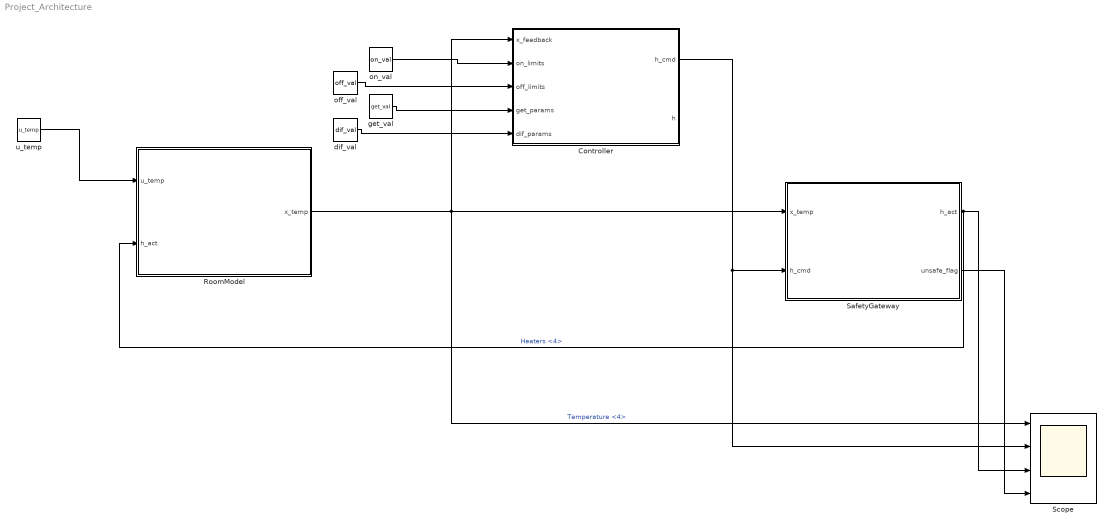
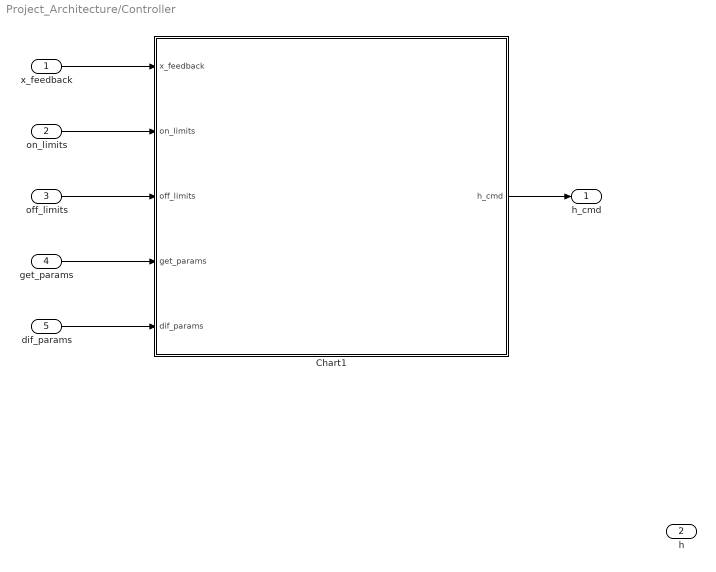
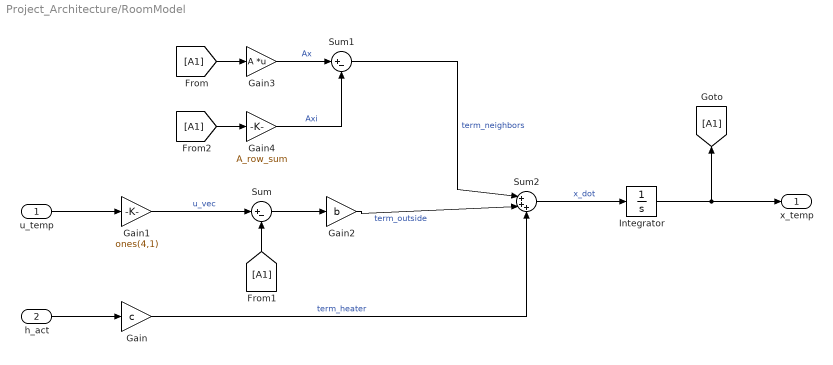
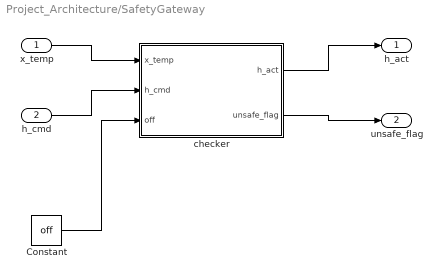
== matlab function Project_Architecture/SafetyGateway/checker ==
function [h_act, unsafe_flag] = checker(x_temp, h_cmd, off)

persistent h_prev
if isempty(h_prev)
    h_prev = zeros(4,1);
end

unsafe_flag = 0;

% Force column vectors
x = x_temp(:);
h = h_cmd(:);

h_rounded = round(h);

if any(abs(h - h_rounded) > 1e-6)
    unsafe_flag = 1;
    h_act = h_prev;
    return;
end

h = h_rounded;

if sum(h) > 2
    unsafe_flag = 1;
    h_act = h_prev;
    return;
end

for i = 1:4
    if x(i) >= off(i) && h(i) == 1
        unsafe_flag = 1;
        h_act = h_prev;
        return;
    end
end

h_act = h;
h_prev = h_act;

== stateflow chart Project_Architecture/Controller/Chart1 ==
  state S1100
    state S3
    (default) -> S1100.S3
    S1100.S3 -> S1100.S3 [order 4] : [x_feedback(2)>=off_limits(2) && h_cmd(2) == 1]{h_cmd(2) = 0;}
    S1100.S3 -> S1100.S3 [order 3] : [x_feedback(2) <=on_limits(2) && h_cmd(2) == 0]{h_cmd(2) = 1;}
    S1100.S3 -> S1100.S3 [order 2] : [x_feedback(1) <=on_limits(1) && h_cmd(1) == 0]{h_cmd(1) = 1;}
    S1100.S3 -> S1100.S3 [order 1] : [x_feedback(1)>=off_limits(1) && h_cmd(1) == 1]{h_cmd(1) = 0;}
  state S0110
    state S3
    (default) -> S0110.S3
    S0110.S3 -> S0110.S3 [order 4] : [x_feedback(2)>=off_limits(2) && h_cmd(2) == 1]{h_cmd(2) = 0;}
    S0110.S3 -> S0110.S3 [order 3] : [x_feedback(2) <=on_limits(2) && h_cmd(2) == 0]{h_cmd(2) = 1;}
    S0110.S3 -> S0110.S3 [order 2] : [x_feedback(3) <=on_limits(3) && h_cmd(3) == 0]{h_cmd(3) = 1;}
    S0110.S3 -> S0110.S3 [order 1] : [x_feedback(3)>=off_limits(3) && h_cmd(3) == 1]{h_cmd(3) = 0;}
  state S0101
    state S3
    (default) -> S0101.S3
    S0101.S3 -> S0101.S3 [order 4] : [x_feedback(2)>=off_limits(2) && h_cmd(2) == 1]{h_cmd(2) = 0;}
    S0101.S3 -> S0101.S3 [order 3] : [x_feedback(2) <=on_limits(2) && h_cmd(2) == 0]{h_cmd(2) = 1;}
    S0101.S3 -> S0101.S3 [order 2] : [x_feedback(4) <=on_limits(4) && h_cmd(4) == 0]{h_cmd(4) = 1;}
    S0101.S3 -> S0101.S3 [order 1] : [x_feedback(4)>=off_limits(4) && h_cmd(4) == 1]{h_cmd(4) = 0;}
  state S0011
    state S3
    S0011.S3 -> S0011.S3 [order 4] : [x_feedback(4)>=off_limits(4) && h_cmd(4) == 1]{h_cmd(4) = 0;}
    S0011.S3 -> S0011.S3 [order 3] : [x_feedback(4) <=on_limits(4) && h_cmd(4) == 0]{h_cmd(4) = 1;}
    S0011.S3 -> S0011.S3 [order 2] : [x_feedback(3) <=on_limits(3) && h_cmd(3) == 0]{h_cmd(3) = 1;}
    S0011.S3 -> S0011.S3 [order 1] : [x_feedback(3)>=off_limits(3) && h_cmd(3) == 1]{h_cmd(3) = 0;}
  state S1001
    state S3
    (default) -> S1001.S3
    S1001.S3 -> S1001.S3 [order 2] : [x_feedback(4)>=off_limits(4) && h_cmd(4) == 1]{h_cmd(4) = 0;}
    S1001.S3 -> S1001.S3 [order 1] : [x_feedback(4) <=on_limits(4) && h_cmd(4) == 0]{h_cmd(4) = 1;}
    S1001.S3 -> S1001.S3 [order 4] : [x_feedback(1) <=on_limits(1) && h_cmd(1) == 0]{h_cmd(1) = 1;}
    S1001.S3 -> S1001.S3 [order 3] : [x_feedback(1)>=off_limits(1) && h_cmd(1) == 1]{h_cmd(1) = 0;}
  state S1010
    state S3
    (default) -> S1010.S3
    S1010.S3 -> S1010.S3 [order 4] : [x_feedback(3)>=off_limits(3) && h_cmd(3) == 1]{h_cmd(3) = 0;}
    S1010.S3 -> S1010.S3 [order 3] : [x_feedback(3) <=on_limits(3) && h_cmd(3) == 0]{h_cmd(3) = 1;}
    S1010.S3 -> S1010.S3 [order 2] : [x_feedback(1) <=on_limits(1) && h_cmd(1) == 0]{h_cmd(1) = 1;}
    S1010.S3 -> S1010.S3 [order 1] : [x_feedback(1)>=off_limits(1) && h_cmd(1) == 1]{h_cmd(1) = 0;}
  (default) -> S0110 [order 1]
  S0110 -> S1100 [order 1] : [x_feedback(1) <=get_params(1) && x_feedback(3) - x_feedback(1) >= dif_params(1)]{h_cmd(3) = 0; h_cmd(1) = 1;}
  S1100 -> S0110 [order 1] : [x_feedback(3) <=get_params(3) && x_feedback(1) - x_feedback(3) >= dif_params(3)]{h_cmd(1) = 0; h_cmd(3) = 1;}
  S1001 -> S1100 [order 4] : [x_feedback(2) <=get_params(2) && x_feedback(4) - x_feedback(2) >= dif_params(2)]{h_cmd(4) = 0; h_cmd(2) = 1;}
  S0110 -> S1010 [order 3] : [x_feedback(1) <=get_params(1) && x_feedback(2) - x_feedback(1) >= dif_params(1)]{h_cmd(2) = 0; h_cmd(1) = 1;}
  S1100 -> S1001 [order 3] : [x_feedback(4) <=get_params(4) && x_feedback(2) - x_feedback(4) >= dif_params(4)]{h_cmd(2) = 0; h_cmd(4) = 1;}
  S0101 -> S0110 [order 1] : [x_feedback(3) <=get_params(3) && x_feedback(4) - x_feedback(3) >= dif_params(3)]{h_cmd(4) = 0; h_cmd(3) = 1;}
  S1010 -> S0110 [order 1] : [x_feedback(2) <=get_params(2) && x_feedback(1) - x_feedback(2) >= dif_params(2)]{h_cmd(1) = 0; h_cmd(2) = 1;}
  S1010 -> S1100 [order 4] : [x_feedback(2) <=get_params(2) && x_feedback(3) - x_feedback(2) >= dif_params(2)]{h_cmd(3) = 0; h_cmd(2) = 1;}
  S1100 -> S0101 [order 2] : [x_feedback(4) <=get_params(4) && x_feedback(1) - x_feedback(4) >= dif_params(4)]{h_cmd(1) = 0; h_cmd(4) = 1;}
  S0101 -> S1100 [order 2] : [x_feedback(1) <=get_params(1) && x_feedback(4) - x_feedback(1) >= dif_params(1)]{h_cmd(4) = 0; h_cmd(1) = 1;}
  S0110 -> S0101 [order 2] : [x_feedback(4) <=get_params(4) && x_feedback(3) - x_feedback(4) >= dif_params(4)]{h_cmd(3) = 0; h_cmd(4) = 1;}
  (default) -> S1010 [order 3] : [x_feedback(3) <=get_params(3) && x_feedback(2) - x_feedback(3) >= dif_params(3)]{h_cmd(2) = 0; h_cmd(3) = 1;}
  S0011 -> S0110 [order 1] : [x_feedback(2) <=get_params(2) && x_feedback(4) - x_feedback(2) >= dif_params(2)]{h_cmd(4) = 0; h_cmd(2) = 1;}
  S0110 -> S0011 [order 4] : [x_feedback(4) <=get_params(4) && x_feedback(2) - x_feedback(4) >= dif_params(4)]{h_cmd(2) = 0; h_cmd(4) = 1;}
  (default) -> S0011.S3 [order 2]
  S0011 -> S0101 [order 3] : [x_feedback(2) <=get_params(2) && x_feedback(3) - x_feedback(2) >= dif_params(2)]{h_cmd(3) = 0; h_cmd(2) = 1;}
  S0101 -> S0011 [order 4] : [x_feedback(3) <=get_params(3) && x_feedback(2) - x_feedback(3) >= dif_params(3)]{h_cmd(2) = 0; h_cmd(3) = 1;}
  S1001 -> S0011 [order 1] : [x_feedback(3) <=get_params(3) && x_feedback(1) - x_feedback(3) >= dif_params(3)]{h_cmd(1) = 0; h_cmd(3) = 1;}
  S0011 -> S1001 [order 4] : [x_feedback(1) <=get_params(1) && x_feedback(3) - x_feedback(1) >= dif_params(1)]{h_cmd(3) = 0; h_cmd(1) = 1;}
  S0101 -> S1001 [order 3] : [x_feedback(1) <=get_params(1) && x_feedback(2) - x_feedback(1) >= dif_params(1)]{h_cmd(2) = 0; h_cmd(1) = 1;}
  S1001 -> S0101 [order 2] : [x_feedback(2) <=get_params(2) && x_feedback(1) - x_feedback(2) >= dif_params(2)]{h_cmd(1) = 0; h_cmd(2) = 1;}
  S1010 -> S0011 [order 2] : [x_feedback(4) <=get_params(4) && x_feedback(1) - x_feedback(4) >= dif_params(4)]{h_cmd(1) = 0; h_cmd(4) = 1;}
  S0011 -> S1010 [order 2] : [x_feedback(1) <=get_params(1) && x_feedback(4) - x_feedback(1) >= dif_params(1)]{h_cmd(4) = 0; h_cmd(1) = 1;}
  S1001 -> S1010 [order 3] : [x_feedback(3) <=get_params(3) && x_feedback(4) - x_feedback(3) >= dif_params(3)]{h_cmd(4) = 0; h_cmd(3) = 1;}
  S1010 -> S1001 [order 3] : [x_feedback(4) <=get_params(4) && x_feedback(3) - x_feedback(4) >= dif_params(4)]{h_cmd(3) = 0; h_cmd(4) = 1;}
  data: x_feedback input; h_cmd output =[0 1 1 0]; on_limits input; off_limits input; get_params input; dif_params input

/*
 * File: Project_Architecture.c
 *
 * Code generated for Simulink model 'Project_Architecture'.
 *
 * Model version                  : 1.41
 * Simulink Coder version         : 25.2 (R2025b) 28-Jul-2025
 * C/C++ source code generated on : Sat Feb 14 10:06:21 2026
 *
 * Target selection: ert.tlc
 * Embedded hardware selection: Atmel->AVR
 * Code generation objectives: Unspecified
 * Validation result: Not run
 */

#include "Project_Architecture.h"
#include "rtwtypes.h"
#include "Project_Architecture_private.h"
#include <math.h>

/* Named constants for Chart: '<S1>/Chart1' */
#define Project_Architecture_IN_S0011  ((uint8_T)1U)
#define Project_Architecture_IN_S0101  ((uint8_T)2U)
#define Project_Architecture_IN_S0110  ((uint8_T)3U)
#define Project_Architecture_IN_S1001  ((uint8_T)4U)
#define Project_Architecture_IN_S1010  ((uint8_T)5U)
#define Project_Architecture_IN_S1100  ((uint8_T)6U)

/* Block signals (default storage) */
B_Project_Architecture_T Project_Architecture_B;

/* Continuous states */
X_Project_Architecture_T Project_Architecture_X;

/* Disabled State Vector */
XDis_Project_Architecture_T Project_Architecture_XDis;

/* Block states (default storage) */
DW_Project_Architecture_T Project_Architecture_DW;

/* Real-time model */
static RT_MODEL_Project_Architecture_T Project_Architecture_M_;
RT_MODEL_Project_Architecture_T *const Project_Architecture_M =
  &Project_Architecture_M_;

/* Forward declaration for local functions */
static void Project_Architecture_S0101(const real_T rtu_x_feedback[4], const
  real_T rtu_on_limits[4], const real_T rtu_off_limits[4], const real_T
  rtu_get_params[4], const real_T rtu_dif_params[4], real_T rty_h_cmd[4],
  DW_Controller_Project_Archite_T *localDW);
static void Project_Architecture_S0110(const real_T rtu_x_feedback[4], const
  real_T rtu_on_limits[4], const real_T rtu_off_limits[4], const real_T
  rtu_get_params[4], const real_T rtu_dif_params[4], real_T rty_h_cmd[4],
  DW_Controller_Project_Archite_T *localDW);
static void Project_Architecture_S1001(const real_T rtu_x_feedback[4], const
  real_T rtu_on_limits[4], const real_T rtu_off_limits[4], const real_T
  rtu_get_params[4], const real_T rtu_dif_params[4], real_T rty_h_cmd[4],
  DW_Controller_Project_Archite_T *localDW);
static void Project_Architecture_S1010(const real_T rtu_x_feedback[4], const
  real_T rtu_on_limits[4], const real_T rtu_off_limits[4], const real_T
  rtu_get_params[4], const real_T rtu_dif_params[4], real_T rty_h_cmd[4],
  DW_Controller_Project_Archite_T *localDW);

/*
 * This function updates continuous states using the ODE3 fixed-step
 * solver algorithm
 */
static void rt_ertODEUpdateContinuousStates(RTWSolverInfo *si )
{
  /* Solver Matrices */
  static const real_T rt_ODE3_A[3] = {
    1.0/2.0, 3.0/4.0, 1.0
  };

  static const real_T rt_ODE3_B[3][3] = {
    { 1.0/2.0, 0.0, 0.0 },

    { 0.0, 3.0/4.0, 0.0 },

    { 2.0/9.0, 1.0/3.0, 4.0/9.0 }
  };

  time_T t = rtsiGetT(si);
  time_T tnew = rtsiGetSolverStopTime(si);
  time_T h = rtsiGetStepSize(si);
  real_T *x = rtsiGetContStates(si);
  ODE3_IntgData *id = (ODE3_IntgData *)rtsiGetSolverData(si);
  real_T *y = id->y;
  real_T *f0 = id->f[0];
  real_T *f1 = id->f[1];
  real_T *f2 = id->f[2];
  real_T hB[3];
  int_T i;
  int_T nXc = 4;
  rtsiSetSimTimeStep(si,MINOR_TIME_STEP);

  /* Save the state values at time t in y, we'll use x as ynew. */
  (void) memcpy(y, x,
                (uint_T)nXc*sizeof(real_T));

  /* Assumes that rtsiSetT and ModelOutputs are up-to-date */
  /* f0 = f(t,y) */
  rtsiSetdX(si, f0);
  Project_Architecture_derivatives();

  /* f(:,2) = feval(odefile, t + hA(1), y + f*hB(:,1), args(:)(*)); */
  hB[0] = h * rt_ODE3_B[0][0];
  for (i = 0; i < nXc; i++) {
    x[i] = y[i] + (f0[i]*hB[0]);
  }

  rtsiSetT(si, t + h*rt_ODE3_A[0]);
  rtsiSetdX(si, f1);
  Project_Architecture_step();
  Project_Architecture_derivatives();

  /* f(:,3) = feval(odefile, t + hA(2), y + f*hB(:,2), args(:)(*)); */
  for (i = 0; i <= 1; i++) {
    hB[i] = h * rt_ODE3_B[1][i];
  }

  for (i = 0; i < nXc; i++) {
    x[i] = y[i] + (f0[i]*hB[0] + f1[i]*hB[1]);
  }

  rtsiSetT(si, t + h*rt_ODE3_A[1]);
  rtsiSetdX(si, f2);
  Project_Architecture_step();
  Project_Architecture_derivatives();

  /* tnew = t + hA(3);
     ynew = y + f*hB(:,3); */
  for (i = 0; i <= 2; i++) {
    hB[i] = h * rt_ODE3_B[2][i];
  }

  for (i = 0; i < nXc; i++) {
    x[i] = y[i] + (f0[i]*hB[0] + f1[i]*hB[1] + f2[i]*hB[2]);
  }

  rtsiSetT(si, tnew);
  rtsiSetSimTimeStep(si,MAJOR_TIME_STEP);
}

/* Function for Chart: '<S1>/Chart1' */
static void Project_Architecture_S0101(const real_T rtu_x_feedback[4], const
  real_T rtu_on_limits[4], const real_T rtu_off_limits[4], const real_T
  rtu_get_params[4], const real_T rtu_dif_params[4], real_T rty_h_cmd[4],
  DW_Controller_Project_Archite_T *localDW)
{
  /* Chart: '<S1>/Chart1' */
  if ((rtu_x_feedback[2] <= rtu_get_params[2]) && (rtu_x_feedback[3] -
       rtu_x_feedback[2] >= rtu_dif_params[2])) {
    rty_h_cmd[3] = 0.0;
    rty_h_cmd[2] = 1.0;
    localDW->is_c3_Project_Architecture = Project_Architecture_IN_S0110;
  } else if ((rtu_x_feedback[0] <= rtu_get_params[0]) && (rtu_x_feedback[3] -
              rtu_x_feedback[0] >= rtu_dif_params[0])) {
    rty_h_cmd[3] = 0.0;
    rty_h_cmd[0] = 1.0;
    localDW->is_c3_Project_Architecture = Project_Architecture_IN_S1100;
  } else if ((rtu_x_feedback[0] <= rtu_get_params[0]) && (rtu_x_feedback[1] -
              rtu_x_feedback[0] >= rtu_dif_params[0])) {
    rty_h_cmd[1] = 0.0;
    rty_h_cmd[0] = 1.0;
    localDW->is_c3_Project_Architecture = Project_Architecture_IN_S1001;
  } else if ((rtu_x_feedback[2] <= rtu_get_params[2]) && (rtu_x_feedback[1] -
              rtu_x_feedback[2] >= rtu_dif_params[2])) {
    rty_h_cmd[1] = 0.0;
    rty_h_cmd[2] = 1.0;
    localDW->is_c3_Project_Architecture = Project_Architecture_IN_S0011;
  } else if ((rtu_x_feedback[3] >= rtu_off_limits[3]) && (rty_h_cmd[3] == 1.0))
  {
    rty_h_cmd[3] = 0.0;
  } else if ((rtu_x_feedback[3] <= rtu_on_limits[3]) && (rty_h_cmd[3] == 0.0)) {
    rty_h_cmd[3] = 1.0;
  } else if ((rtu_x_feedback[1] <= rtu_on_limits[1]) && (rty_h_cmd[1] == 0.0)) {
    rty_h_cmd[1] = 1.0;
  } else if ((rtu_x_feedback[1] >= rtu_off_limits[1]) && (rty_h_cmd[1] == 1.0))
  {
    rty_h_cmd[1] = 0.0;
  }

  /* End of Chart: '<S1>/Chart1' */
}

/* Function for Chart: '<S1>/Chart1' */
static void Project_Architecture_S0110(const real_T rtu_x_feedback[4], const
  real_T rtu_on_limits[4], const real_T rtu_off_limits[4], const real_T
  rtu_get_params[4], const real_T rtu_dif_params[4], real_T rty_h_cmd[4],
  DW_Controller_Project_Archite_T *localDW)
{
  /* Chart: '<S1>/Chart1' */
  if ((rtu_x_feedback[0] <= rtu_get_params[0]) && (rtu_x_feedback[2] -
       rtu_x_feedback[0] >= rtu_dif_params[0])) {
    rty_h_cmd[2] = 0.0;
    rty_h_cmd[0] = 1.0;
    localDW->is_c3_Project_Architecture = Project_Architecture_IN_S1100;
  } else if ((rtu_x_feedback[3] <= rtu_get_params[3]) && (rtu_x_feedback[2] -
              rtu_x_feedback[3] >= rtu_dif_params[3])) {
    rty_h_cmd[2] = 0.0;
    rty_h_cmd[3] = 1.0;
    localDW->is_c3_Project_Architecture = Project_Architecture_IN_S0101;
  } else if ((rtu_x_feedback[0] <= rtu_get_params[0]) && (rtu_x_feedback[1] -
              rtu_x_feedback[0] >= rtu_dif_params[0])) {
    rty_h_cmd[1] = 0.0;
    rty_h_cmd[0] = 1.0;
    localDW->is_c3_Project_Architecture = Project_Architecture_IN_S1010;
  } else if ((rtu_x_feedback[3] <= rtu_get_params[3]) && (rtu_x_feedback[1] -
              rtu_x_feedback[3] >= rtu_dif_params[3])) {
    rty_h_cmd[1] = 0.0;
    rty_h_cmd[3] = 1.0;
    localDW->is_c3_Project_Architecture = Project_Architecture_IN_S0011;
  } else if ((rtu_x_feedback[2] >= rtu_off_limits[2]) && (rty_h_cmd[2] == 1.0))
  {
    rty_h_cmd[2] = 0.0;
  } else if ((rtu_x_feedback[2] <= rtu_on_limits[2]) && (rty_h_cmd[2] == 0.0)) {
    rty_h_cmd[2] = 1.0;
  } else if ((rtu_x_feedback[1] <= rtu_on_limits[1]) && (rty_h_cmd[1] == 0.0)) {
    rty_h_cmd[1] = 1.0;
  } else if ((rtu_x_feedback[1] >= rtu_off_limits[1]) && (rty_h_cmd[1] == 1.0))
  {
    rty_h_cmd[1] = 0.0;
  }

  /* End of Chart: '<S1>/Chart1' */
}

/* Function for Chart: '<S1>/Chart1' */
static void Project_Architecture_S1001(const real_T rtu_x_feedback[4], const
  real_T rtu_on_limits[4], const real_T rtu_off_limits[4], const real_T
  rtu_get_params[4], const real_T rtu_dif_params[4], real_T rty_h_cmd[4],
  DW_Controller_Project_Archite_T *localDW)
{
  /* Chart: '<S1>/Chart1' */
  if ((rtu_x_feedback[2] <= rtu_get_params[2]) && (rtu_x_feedback[0] -
       rtu_x_feedback[2] >= rtu_dif_params[2])) {
    rty_h_cmd[0] = 0.0;
    rty_h_cmd[2] = 1.0;
    localDW->is_c3_Project_Architecture = Project_Architecture_IN_S0011;
  } else if ((rtu_x_feedback[1] <= rtu_get_params[1]) && (rtu_x_feedback[0] -
              rtu_x_feedback[1] >= rtu_dif_params[1])) {
    rty_h_cmd[0] = 0.0;
    rty_h_cmd[1] = 1.0;
    localDW->is_c3_Project_Architecture = Project_Architecture_IN_S0101;
  } else if ((rtu_x_feedback[2] <= rtu_get_params[2]) && (rtu_x_feedback[3] -
              rtu_x_feedback[2] >= rtu_dif_params[2])) {
    rty_h_cmd[3] = 0.0;
    rty_h_cmd[2] = 1.0;
    localDW->is_c3_Project_Architecture = Project_Architecture_IN_S1010;
  } else if ((rtu_x_feedback[1] <= rtu_get_params[1]) && (rtu_x_feedback[3] -
              rtu_x_feedback[1] >= rtu_dif_params[1])) {
    rty_h_cmd[3] = 0.0;
    rty_h_cmd[1] = 1.0;
    localDW->is_c3_Project_Architecture = Project_Architecture_IN_S1100;
  } else if ((rtu_x_feedback[3] <= rtu_on_limits[3]) && (rty_h_cmd[3] == 0.0)) {
    rty_h_cmd[3] = 1.0;
  } else if ((rtu_x_feedback[3] >= rtu_off_limits[3]) && (rty_h_cmd[3] == 1.0))
  {
    rty_h_cmd[3] = 0.0;
  } else if ((rtu_x_feedback[0] >= rtu_off_limits[0]) && (rty_h_cmd[0] == 1.0))
  {
    rty_h_cmd[0] = 0.0;
  } else if ((rtu_x_feedback[0] <= rtu_on_limits[0]) && (rty_h_cmd[0] == 0.0)) {
    rty_h_cmd[0] = 1.0;
  }

  /* End of Chart: '<S1>/Chart1' */
}

/* Function for Chart: '<S1>/Chart1' */
static void Project_Architecture_S1010(const real_T rtu_x_feedback[4], const
  real_T rtu_on_limits[4], const real_T rtu_off_limits[4], const real_T
  rtu_get_params[4], const real_T rtu_dif_params[4], real_T rty_h_cmd[4],
  DW_Controller_Project_Archite_T *localDW)
{
  /* Chart: '<S1>/Chart1' */
  if ((rtu_x_feedback[1] <= rtu_get_params[1]) && (rtu_x_feedback[0] -
       rtu_x_feedback[1] >= rtu_dif_params[1])) {
    rty_h_cmd[0] = 0.0;
    rty_h_cmd[1] = 1.0;
    localDW->is_c3_Project_Architecture = Project_Architecture_IN_S0110;
  } else if ((rtu_x_feedback[3] <= rtu_get_params[3]) && (rtu_x_feedback[0] -
              rtu_x_feedback[3] >= rtu_dif_params[3])) {
    rty_h_cmd[0] = 0.0;
    rty_h_cmd[3] = 1.0;
    localDW->is_c3_Project_Architecture = Project_Architecture_IN_S0011;
  } else if ((rtu_x_feedback[3] <= rtu_get_params[3]) && (rtu_x_feedback[2] -
              rtu_x_feedback[3] >= rtu_dif_params[3])) {
    rty_h_cmd[2] = 0.0;
    rty_h_cmd[3] = 1.0;
    localDW->is_c3_Project_Architecture = Project_Architecture_IN_S1001;
  } else if ((rtu_x_feedback[1] <= rtu_get_params[1]) && (rtu_x_feedback[2] -
              rtu_x_feedback[1] >= rtu_dif_params[1])) {
    rty_h_cmd[2] = 0.0;
    rty_h_cmd[1] = 1.0;
    localDW->is_c3_Project_Architecture = Project_Architecture_IN_S1100;
  } else if ((rtu_x_feedback[0] >= rtu_off_limits[0]) && (rty_h_cmd[0] == 1.0))
  {
    rty_h_cmd[0] = 0.0;
  } else if ((rtu_x_feedback[0] <= rtu_on_limits[0]) && (rty_h_cmd[0] == 0.0)) {
    rty_h_cmd[0] = 1.0;
  } else if ((rtu_x_feedback[2] <= rtu_on_limits[2]) && (rty_h_cmd[2] == 0.0)) {
    rty_h_cmd[2] = 1.0;
  } else if ((rtu_x_feedback[2] >= rtu_off_limits[2]) && (rty_h_cmd[2] == 1.0))
  {
    rty_h_cmd[2] = 0.0;
  }

  /* End of Chart: '<S1>/Chart1' */
}

/* System initialize for atomic system: '<Root>/Controller' */
void Project_Archite_Controller_Init(real_T rty_h_cmd[4])
{
  /* SystemInitialize for Chart: '<S1>/Chart1' */
  rty_h_cmd[0] = 0.0;
  rty_h_cmd[1] = 1.0;
  rty_h_cmd[2] = 1.0;
  rty_h_cmd[3] = 0.0;
}

/* Output and update for atomic system: '<Root>/Controller' */
void Project_Architecture_Controller(const real_T rtu_x_feedback[4], const
  real_T rtu_on_limits[4], const real_T rtu_off_limits[4], const real_T
  rtu_get_params[4], const real_T rtu_dif_params[4], real_T rty_h_cmd[4],
  DW_Controller_Project_Archite_T *localDW)
{
  /* Chart: '<S1>/Chart1' */
  if (localDW->is_active_c3_Project_Architectu == 0) {
    localDW->is_active_c3_Project_Architectu = 1U;
    localDW->is_c3_Project_Architecture = Project_Architecture_IN_S0110;
  } else {
    switch (localDW->is_c3_Project_Architecture) {
     case Project_Architecture_IN_S0011:
      if ((rtu_x_feedback[1] <= rtu_get_params[1]) && (rtu_x_feedback[3] -
           rtu_x_feedback[1] >= rtu_dif_params[1])) {
        rty_h_cmd[3] = 0.0;
        rty_h_cmd[1] = 1.0;
        localDW->is_c3_Project_Architecture = Project_Architecture_IN_S0110;
      } else if ((rtu_x_feedback[0] <= rtu_get_params[0]) && (rtu_x_feedback[3]
                  - rtu_x_feedback[0] >= rtu_dif_params[0])) {
        rty_h_cmd[3] = 0.0;
        rty_h_cmd[0] = 1.0;
        localDW->is_c3_Project_Architecture = Project_Architecture_IN_S1010;
      } else if ((rtu_x_feedback[1] <= rtu_get_params[1]) && (rtu_x_feedback[2]
                  - rtu_x_feedback[1] >= rtu_dif_params[1])) {
        rty_h_cmd[2] = 0.0;
        rty_h_cmd[1] = 1.0;
        localDW->is_c3_Project_Architecture = Project_Architecture_IN_S0101;
      } else if ((rtu_x_feedback[0] <= rtu_get_params[0]) && (rtu_x_feedback[2]
                  - rtu_x_feedback[0] >= rtu_dif_params[0])) {
        rty_h_cmd[2] = 0.0;
        rty_h_cmd[0] = 1.0;
        localDW->is_c3_Project_Architecture = Project_Architecture_IN_S1001;
      } else if ((rtu_x_feedback[2] >= rtu_off_limits[2]) && (rty_h_cmd[2] ==
                  1.0)) {
        rty_h_cmd[2] = 0.0;
      } else if ((rtu_x_feedback[2] <= rtu_on_limits[2]) && (rty_h_cmd[2] == 0.0))
      {
        rty_h_cmd[2] = 1.0;
      } else if ((rtu_x_feedback[3] <= rtu_on_limits[3]) && (rty_h_cmd[3] == 0.0))
      {
        rty_h_cmd[3] = 1.0;
      } else if ((rtu_x_feedback[3] >= rtu_off_limits[3]) && (rty_h_cmd[3] ==
                  1.0)) {
        rty_h_cmd[3] = 0.0;
      }
      break;

     case Project_Architecture_IN_S0101:
      Project_Architecture_S0101(rtu_x_feedback, rtu_on_limits, rtu_off_limits,
        rtu_get_params, rtu_dif_params, rty_h_cmd, localDW);
      break;

     case Project_Architecture_IN_S0110:
      Project_Architecture_S0110(rtu_x_feedback, rtu_on_limits, rtu_off_limits,
        rtu_get_params, rtu_dif_params, rty_h_cmd, localDW);
      break;

     case Project_Architecture_IN_S1001:
      Project_Architecture_S1001(rtu_x_feedback, rtu_on_limits, rtu_off_limits,
        rtu_get_params, rtu_dif_params, rty_h_cmd, localDW);
      break;

     case Project_Architecture_IN_S1010:
      Project_Architecture_S1010(rtu_x_feedback, rtu_on_limits, rtu_off_limits,
        rtu_get_params, rtu_dif_params, rty_h_cmd, localDW);
      break;

     default:
      /* case IN_S1100: */
      if ((rtu_x_feedback[2] <= rtu_get_params[2]) && (rtu_x_feedback[0] -
           rtu_x_feedback[2] >= rtu_dif_params[2])) {
        rty_h_cmd[0] = 0.0;
        rty_h_cmd[2] = 1.0;
        localDW->is_c3_Project_Architecture = Project_Architecture_IN_S0110;
      } else if ((rtu_x_feedback[3] <= rtu_get_params[3]) && (rtu_x_feedback[0]
                  - rtu_x_feedback[3] >= rtu_dif_params[3])) {
        rty_h_cmd[0] = 0.0;
        rty_h_cmd[3] = 1.0;
        localDW->is_c3_Project_Architecture = Project_Architecture_IN_S0101;
      } else if ((rtu_x_feedback[3] <= rtu_get_params[3]) && (rtu_x_feedback[1]
                  - rtu_x_feedback[3] >= rtu_dif_params[3])) {
        rty_h_cmd[1] = 0.0;
        rty_h_cmd[3] = 1.0;
        localDW->is_c3_Project_Architecture = Project_Architecture_IN_S1001;
      } else if ((rtu_x_feedback[0] >= rtu_off_limits[0]) && (rty_h_cmd[0] ==
                  1.0)) {
        rty_h_cmd[0] = 0.0;
      } else if ((rtu_x_feedback[0] <= rtu_on_limits[0]) && (rty_h_cmd[0] == 0.0))
      {
        rty_h_cmd[0] = 1.0;
      } else if ((rtu_x_feedback[1] <= rtu_on_limits[1]) && (rty_h_cmd[1] == 0.0))
      {
        rty_h_cmd[1] = 1.0;
      } else if ((rtu_x_feedback[1] >= rtu_off_limits[1]) && (rty_h_cmd[1] ==
                  1.0)) {
        rty_h_cmd[1] = 0.0;
      }
      break;
    }
  }

  /* End of Chart: '<S1>/Chart1' */
}

real_T rt_roundd_snf(real_T u)
{
  real_T y;
  if (fabs(u) < 4.503599627370496E+15) {
    if (u >= 0.5) {
      y = floor(u + 0.5);
    } else if (u > -0.5) {
      y = u * 0.0;
    } else {
      y = ceil(u - 0.5);
    }
  } else {
    y = u;
  }

  return y;
}

/* Model step function */
void Project_Architecture_step(void)
{
  real_T y[4];
  real_T Integrator_CSTATE;
  int32_T exitg2;
  int16_T c_k;
  boolean_T b_y;
  boolean_T exitg1;
  if (rtmIsMajorTimeStep(Project_Architecture_M)) {
    /* set solver stop time */
    rtsiSetSolverStopTime(&Project_Architecture_M->solverInfo,
                          ((Project_Architecture_M->Timing.clockTick0+1)*
      Project_Architecture_M->Timing.stepSize0));
  }                                    /* end MajorTimeStep */

  /* Update absolute time of base rate at minor time step */
  if (rtmIsMinorTimeStep(Project_Architecture_M)) {
    Project_Architecture_M->Timing.t[0] = rtsiGetT
      (&Project_Architecture_M->solverInfo);
  }

  if (rtmIsMajorTimeStep(Project_Architecture_M)) {
    /* Outputs for Atomic SubSystem: '<Root>/Controller' */
    /* Integrator: '<S2>/Integrator' incorporates:
     *  Constant: '<Root>/dif_val'
     *  Constant: '<Root>/get_val'
     *  Constant: '<Root>/off_val'
     *  Constant: '<Root>/on_val'
     */
    Project_Architecture_Controller(Project_Architecture_X.Integrator_CSTATE,
      Project_Architecture_P.on_val, Project_Architecture_P.off_val,
      Project_Architecture_P.get_val, Project_Architecture_P.dif_val,
      Project_Architecture_B.h_cmd, &Project_Architecture_DW.Controller);

    /* End of Outputs for SubSystem: '<Root>/Controller' */

    /* Outputs for Atomic SubSystem: '<Root>/SafetyGateway' */
    /* MATLAB Function: '<S3>/checker' */
    Project_Architecture_B.term_heater[0] = Project_Architecture_B.h_cmd[0];
    Project_Architecture_B.term_heater[0] = rt_roundd_snf
      (Project_Architecture_B.term_heater[0]);
    y[0] = fabs(Project_Architecture_B.h_cmd[0] -
                Project_Architecture_B.term_heater[0]);
    Project_Architecture_B.term_heater[1] = Project_Architecture_B.h_cmd[1];
    Project_Architecture_B.term_heater[1] = rt_roundd_snf
      (Project_Architecture_B.term_heater[1]);
    y[1] = fabs(Project_Architecture_B.h_cmd[1] -
                Project_Architecture_B.term_heater[1]);
    Project_Architecture_B.term_heater[2] = Project_Architecture_B.h_cmd[2];
    Project_Architecture_B.term_heater[2] = rt_roundd_snf
      (Project_Architecture_B.term_heater[2]);
    y[2] = fabs(Project_Architecture_B.h_cmd[2] -
                Project_Architecture_B.term_heater[2]);
    Project_Architecture_B.term_heater[3] = Project_Architecture_B.h_cmd[3];
    Project_Architecture_B.term_heater[3] = rt_roundd_snf
      (Project_Architecture_B.term_heater[3]);
    y[3] = fabs(Project_Architecture_B.h_cmd[3] -
                Project_Architecture_B.term_heater[3]);
    b_y = false;
    c_k = 0;
    exitg1 = false;
    while ((!exitg1) && (c_k < 4)) {
      if (y[c_k] > 1.0E-6) {
        b_y = true;
        exitg1 = true;
      } else {
        c_k++;
      }
    }

    if (b_y) {
      Project_Architecture_B.term_heater[0] = Project_Architecture_DW.h_prev[0];
      Project_Architecture_B.term_heater[1] = Project_Architecture_DW.h_prev[1];
      Project_Architecture_B.term_heater[2] = Project_Architecture_DW.h_prev[2];
      Project_Architecture_B.term_heater[3] = Project_Architecture_DW.h_prev[3];
    } else if (((Project_Architecture_B.term_heater[0] +
                 Project_Architecture_B.term_heater[1]) +
                Project_Architecture_B.term_heater[2]) +
               Project_Architecture_B.term_heater[3] > 2.0) {
      Project_Architecture_B.term_heater[0] = Project_Architecture_DW.h_prev[0];
      Project_Architecture_B.term_heater[1] = Project_Architecture_DW.h_prev[1];
      Project_Architecture_B.term_heater[2] = Project_Architecture_DW.h_prev[2];
      Project_Architecture_B.term_heater[3] = Project_Architecture_DW.h_prev[3];
    } else {
      c_k = 0;
      do {
        exitg2 = 0L;
        if (c_k < 4) {
          if ((Project_Architecture_X.Integrator_CSTATE[c_k] >=
               Project_Architecture_P.off[c_k]) &&
              (Project_Architecture_B.term_heater[c_k] == 1.0)) {
            Project_Architecture_B.term_heater[0] =
              Project_Architecture_DW.h_prev[0];
            Project_Architecture_B.term_heater[1] =
              Project_Architecture_DW.h_prev[1];
            Project_Architecture_B.term_heater[2] =
              Project_Architecture_DW.h_prev[2];
            Project_Architecture_B.term_heater[3] =
              Project_Architecture_DW.h_prev[3];
            exitg2 = 1L;
          } else {
            c_k++;
          }
        } else {
          Project_Architecture_DW.h_prev[0] =
            Project_Architecture_B.term_heater[0];
          Project_Architecture_DW.h_prev[1] =
            Project_Architecture_B.term_heater[1];
          Project_Architecture_DW.h_prev[2] =
            Project_Architecture_B.term_heater[2];
          Project_Architecture_DW.h_prev[3] =
            Project_Architecture_B.term_heater[3];
          exitg2 = 1L;
        }
      } while (exitg2 == 0L);
    }

    /* End of MATLAB Function: '<S3>/checker' */
    /* End of Outputs for SubSystem: '<Root>/SafetyGateway' */

    /* Gain: '<S2>/Gain' */
    Project_Architecture_B.term_heater[0] *= Project_Architecture_P.c[0];

    /* Gain: '<S2>/Gain1' incorporates:
     *  Constant: '<Root>/u_temp'
     */
    Project_Architecture_B.u_vec[0] = Project_Architecture_P.Gain1_Gain[0] *
      Project_Architecture_P.u_temp;

    /* Gain: '<S2>/Gain' */
    Project_Architecture_B.term_heater[1] *= Project_Architecture_P.c[1];

    /* Gain: '<S2>/Gain1' incorporates:
     *  Constant: '<Root>/u_temp'
     */
    Project_Architecture_B.u_vec[1] = Project_Architecture_P.Gain1_Gain[1] *
      Project_Architecture_P.u_temp;

    /* Gain: '<S2>/Gain' */
    Project_Architecture_B.term_heater[2] *= Project_Architecture_P.c[2];

    /* Gain: '<S2>/Gain1' incorporates:
     *  Constant: '<Root>/u_temp'
     */
    Project_Architecture_B.u_vec[2] = Project_Architecture_P.Gain1_Gain[2] *
      Project_Architecture_P.u_temp;

    /* Gain: '<S2>/Gain' */
    Project_Architecture_B.term_heater[3] *= Project_Architecture_P.c[3];

    /* Gain: '<S2>/Gain1' incorporates:
     *  Constant: '<Root>/u_temp'
     */
    Project_Architecture_B.u_vec[3] = Project_Architecture_P.Gain1_Gain[3] *
      Project_Architecture_P.u_temp;
  }

  for (c_k = 0; c_k < 4; c_k++) {
    /* Integrator: '<S2>/Integrator' incorporates:
     *  Gain: '<S2>/Gain3'
     */
    Integrator_CSTATE = Project_Architecture_X.Integrator_CSTATE[c_k];

    /* Sum: '<S2>/Sum2' incorporates:
     *  Gain: '<S2>/Gain2'
     *  Gain: '<S2>/Gain3'
     *  Gain: '<S2>/Gain4'
     *  Integrator: '<S2>/Integrator'
     *  Sum: '<S2>/Sum'
     *  Sum: '<S2>/Sum1'
     */
    Project_Architecture_B.x_dot[c_k] = (((((Project_Architecture_P.A[c_k + 4] *
      Project_Architecture_X.Integrator_CSTATE[1] + Project_Architecture_P.A[c_k]
      * Project_Architecture_X.Integrator_CSTATE[0]) +
      Project_Architecture_P.A[c_k + 8] *
      Project_Architecture_X.Integrator_CSTATE[2]) +
      Project_Architecture_P.A[c_k + 12] *
      Project_Architecture_X.Integrator_CSTATE[3]) -
      Project_Architecture_P.A_row_sum[c_k] * Integrator_CSTATE) +
      (Project_Architecture_B.u_vec[c_k] - Integrator_CSTATE) *
      Project_Architecture_P.b[c_k]) + Project_Architecture_B.term_heater[c_k];
  }

  if (rtmIsMajorTimeStep(Project_Architecture_M)) {
    rt_ertODEUpdateContinuousStates(&Project_Architecture_M->solverInfo);

    /* Update absolute time for base rate */
    /* The "clockTick0" counts the number of times the code of this task has
     * been executed. The absolute time is the multiplication of "clockTick0"
     * and "Timing.stepSize0". Size of "clockTick0" ensures timer will not
     * overflow during the application lifespan selected.
     */
    ++Project_Architecture_M->Timing.clockTick0;
    Project_Architecture_M->Timing.t[0] = rtsiGetSolverStopTime
      (&Project_Architecture_M->solverInfo);

    {
      /* Update absolute timer for sample time: [0.1s, 0.0s] */
      /* The "clockTick1" counts the number of times the code of this task has
       * been executed. The resolution of this integer timer is 0.1, which is the step size
       * of the task. Size of "clockTick1" ensures timer will not overflow during the
       * application lifespan selected.
       */
      Project_Architecture_M->Timing.clockTick1++;
    }
  }                                    /* end MajorTimeStep */
}
